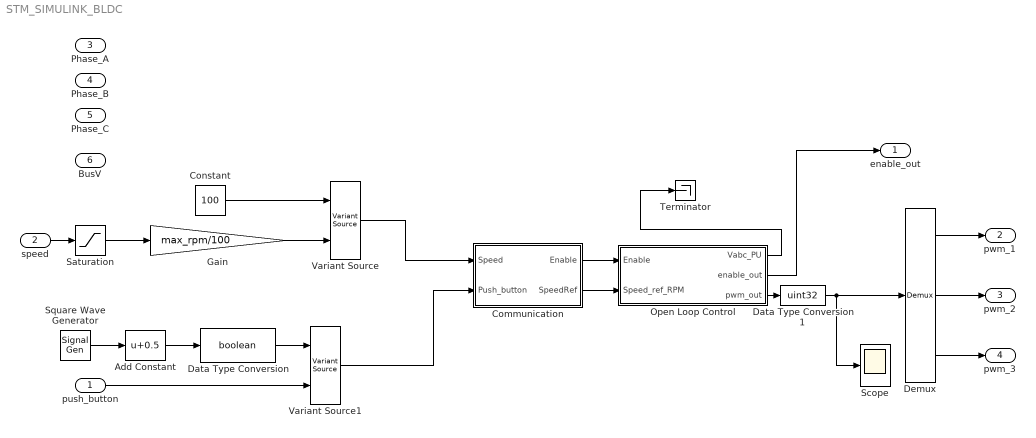
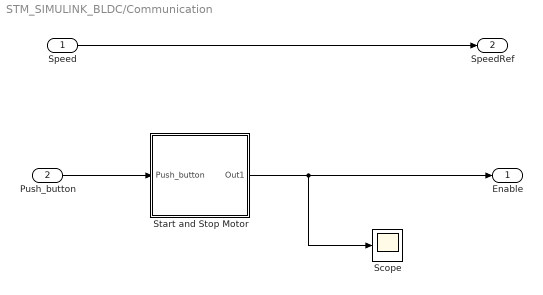
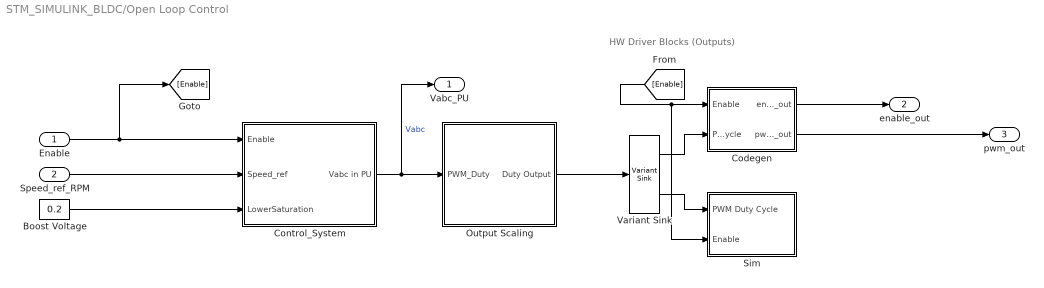
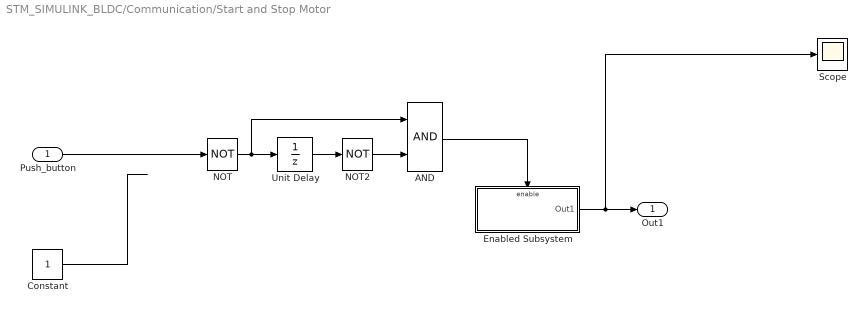
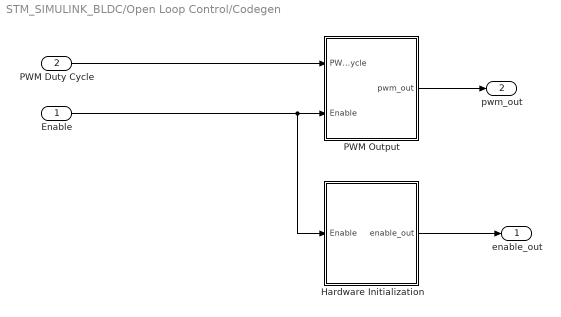
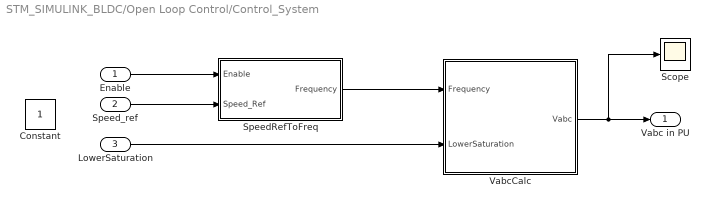
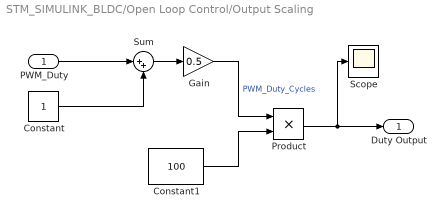
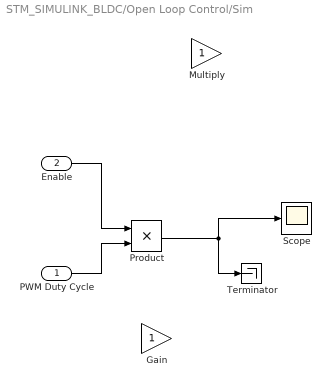
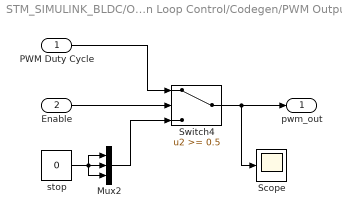
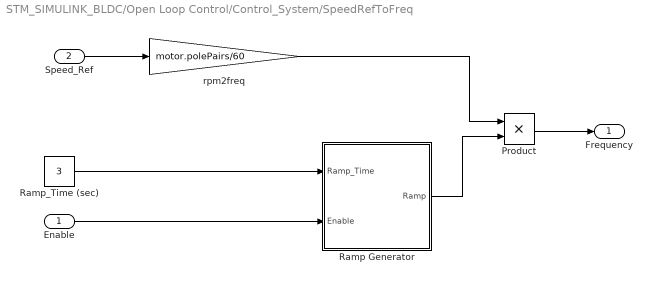
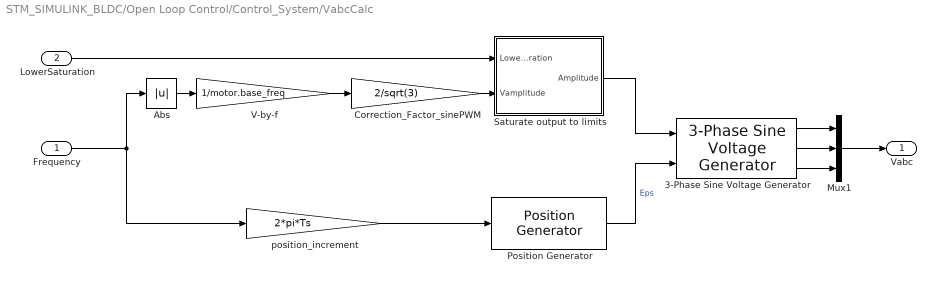
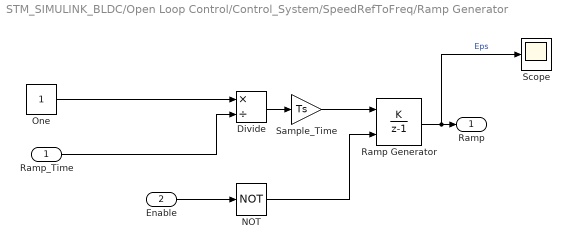
== system STM_SIMULINK_BLDC/Communication/Start and Stop Motor/Enabled Subsystem ==
  Enable : EnablePort
  NOT : Logic  Operator=NOT  IconShape=distinctive  AllPortsSameDT=off  OutDataTypeStr=boolean
  Unit Delay : UnitDelay  InitialCondition=true  SampleTime=-1  HasFrameUpgradeWarning=on
  Out1 : Outport
  wires:
  Unit Delay/1 -> NOT/1, Out1/1
  NOT/1 -> Unit Delay/1

== system STM_SIMULINK_BLDC/Open Loop Control/Codegen/Hardware Initialization ==
  Enable : Inport
  Constant1 : Constant  Value=0.5  OutDataTypeStr=uint16
  NOT : Logic  Operator=NOT  IconShape=distinctive  AllPortsSameDT=off  OutDataTypeStr=boolean
  Switch : Switch  Criteria=u2 > Threshold  OutDataTypeStr=boolean  RndMeth=Simplest  SaturateOnIntegerOverflow=off  InputSameDT=off
  enable_out : Outport
  wires:
  Enable/1 -> NOT/1, Switch/1
  Constant1/1 -> Switch/2
  NOT/1 -> Switch/3
  Switch/1 -> enable_out/1

== system STM_SIMULINK_BLDC/Open Loop Control/Control_System/VabcCalc/Saturate output to limits ==
  Lower Saturation : Inport
  Vamplitude : Inport  Port=2
  Relational Operator : RelationalOperator  Operator=>  OutDataTypeStr=boolean  RndMeth=Simplest  InputSameDT=off
  Saturation : Saturate  UpperLimit=0.95  LowerLimit=0  RndMeth=Simplest
  Switch : Switch  Criteria=u2 > Threshold  SaturateOnIntegerOverflow=off  InputSameDT=off
  Amplitude : Outport
  wires:
  Saturation/1 -> Amplitude/1
  Switch/1 -> Saturation/1
  Relational Operator/1 -> Switch/2
  Lower Saturation/1 -> Switch/3, Relational Operator/2
  Vamplitude/1 -> Switch/1, Relational Operator/1

/*
 * Academic License - for use in teaching, academic research, and meeting
 * course requirements at degree granting institutions only.  Not for
 * government, commercial, or other organizational use.
 *
 * File: STM_SIMULINK_BLDC.c
 *
 * Code generated for Simulink model 'STM_SIMULINK_BLDC'.
 *
 * Model version                  : 1.1
 * Simulink Coder version         : 9.7 (R2022a) 13-Nov-2021
 * C/C++ source code generated on : Thu Dec 14 16:52:02 2023
 *
 * Target selection: ert.tlc
 * Embedded hardware selection: ARM Compatible->ARM Cortex
 * Code generation objectives: Unspecified
 * Validation result: Not run
 */

#include "STM_SIMULINK_BLDC.h"
#include <math.h>
#include "rt_nonfinite.h"
#include "rtwtypes.h"
#include "STM_SIMULINK_BLDC_private.h"

/* Block signals (default storage) */
B_STM_SIMULINK_BLDC_T STM_SIMULINK_BLDC_B;

/* Block states (default storage) */
DW_STM_SIMULINK_BLDC_T STM_SIMULINK_BLDC_DW;

/* External inputs (root inport signals with default storage) */
ExtU_STM_SIMULINK_BLDC_T STM_SIMULINK_BLDC_U;

/* External outputs (root outports fed by signals with default storage) */
ExtY_STM_SIMULINK_BLDC_T STM_SIMULINK_BLDC_Y;

/* Real-time model */
static RT_MODEL_STM_SIMULINK_BLDC_T STM_SIMULINK_BLDC_M_;
RT_MODEL_STM_SIMULINK_BLDC_T *const STM_SIMULINK_BLDC_M = &STM_SIMULINK_BLDC_M_;

/* Model step function */
void STM_SIMULINK_BLDC_step(void)
{
  real32_T rtb_Product_k;
  real32_T rtb_Sum4;
  real32_T rtb_Switch_idx_0;
  real32_T rtb_sum_beta;
  uint16_T rtb_Get_Integer;
  boolean_T rtb_NOT_g2;

  /* Outputs for Atomic SubSystem: '<S1>/Start and Stop Motor' */
  /* Logic: '<S3>/NOT' incorporates:
   *  Inport: '<Root>/push_button'
   */
  rtb_NOT_g2 = !STM_SIMULINK_BLDC_U.push_button;

  /* Outputs for Enabled SubSystem: '<S3>/Enabled Subsystem' incorporates:
   *  EnablePort: '<S4>/Enable'
   */
  /* Logic: '<S3>/AND' incorporates:
   *  Logic: '<S3>/NOT2'
   *  UnitDelay: '<S3>/Unit Delay'
   */
  if (rtb_NOT_g2 && (!STM_SIMULINK_BLDC_DW.UnitDelay_DSTATE_e)) {
    /* UnitDelay: '<S4>/Unit Delay' */
    STM_SIMULINK_BLDC_B.UnitDelay = STM_SIMULINK_BLDC_DW.UnitDelay_DSTATE_n;

    /* Logic: '<S4>/NOT' incorporates:
     *  UnitDelay: '<S4>/Unit Delay'
     */
    STM_SIMULINK_BLDC_DW.UnitDelay_DSTATE_n = !STM_SIMULINK_BLDC_B.UnitDelay;
  }

  /* End of Logic: '<S3>/AND' */
  /* End of Outputs for SubSystem: '<S3>/Enabled Subsystem' */

  /* Update for UnitDelay: '<S3>/Unit Delay' */
  STM_SIMULINK_BLDC_DW.UnitDelay_DSTATE_e = rtb_NOT_g2;

  /* End of Outputs for SubSystem: '<S1>/Start and Stop Motor' */

  /* Logic: '<S13>/NOT' incorporates:
   *  Logic: '<S9>/NOT'
   *  Switch: '<S9>/Switch'
   */
  rtb_NOT_g2 = !STM_SIMULINK_BLDC_B.UnitDelay;

  /* DiscreteIntegrator: '<S13>/Ramp Generator' incorporates:
   *  Logic: '<S13>/NOT'
   */
  if ((rtb_NOT_g2 && (STM_SIMULINK_BLDC_DW.RampGenerator_PrevResetState <= 0)) ||
      ((!rtb_NOT_g2) && (STM_SIMULINK_BLDC_DW.RampGenerator_PrevResetState == 1)))
  {
    STM_SIMULINK_BLDC_DW.RampGenerator_DSTATE =
      STM_SIMULINK_BLDC_P.RampGenerator_IC;
  }

  if (STM_SIMULINK_BLDC_DW.RampGenerator_DSTATE >=
      STM_SIMULINK_BLDC_P.RampGenerator_UpperSat) {
    STM_SIMULINK_BLDC_DW.RampGenerator_DSTATE =
      STM_SIMULINK_BLDC_P.RampGenerator_UpperSat;
  } else if (STM_SIMULINK_BLDC_DW.RampGenerator_DSTATE <=
             STM_SIMULINK_BLDC_P.RampGenerator_LowerSat) {
    STM_SIMULINK_BLDC_DW.RampGenerator_DSTATE =
      STM_SIMULINK_BLDC_P.RampGenerator_LowerSat;
  }

  /* Saturate: '<Root>/Saturation' incorporates:
   *  Inport: '<Root>/speed'
   */
  if (STM_SIMULINK_BLDC_U.speed > STM_SIMULINK_BLDC_P.Saturation_UpperSat_h) {
    rtb_Get_Integer = STM_SIMULINK_BLDC_P.Saturation_UpperSat_h;
  } else if (STM_SIMULINK_BLDC_U.speed <
             STM_SIMULINK_BLDC_P.Saturation_LowerSat_e) {
    rtb_Get_Integer = STM_SIMULINK_BLDC_P.Saturation_LowerSat_e;
  } else {
    rtb_Get_Integer = STM_SIMULINK_BLDC_U.speed;
  }

  /* End of Saturate: '<Root>/Saturation' */

  /* Product: '<S11>/Product' incorporates:
   *  DiscreteIntegrator: '<S13>/Ramp Generator'
   *  Gain: '<Root>/Gain'
   *  Gain: '<S11>/rpm2freq'
   */
  rtb_Product_k = (real32_T)((uint32_T)STM_SIMULINK_BLDC_P.Gain_Gain_d *
    rtb_Get_Integer) * 0.000244140625F * ((real32_T)
    STM_SIMULINK_BLDC_P.rpm2freq_Gain * 2.91038305E-11F) *
    STM_SIMULINK_BLDC_DW.RampGenerator_DSTATE;

  /* Outputs for Enabled SubSystem: '<S15>/Accumulate' incorporates:
   *  EnablePort: '<S26>/Enable'
   */
  STM_SIMULINK_BLDC_DW.Accumulate_MODE = true;

  /* Outputs for Enabled SubSystem: '<S26>/Subsystem' incorporates:
   *  EnablePort: '<S27>/Enable'
   */
  /* Delay: '<S26>/Delay' */
  if (STM_SIMULINK_BLDC_DW.Delay_DSTATE) {
    /* SignalConversion generated from: '<S27>/Input' incorporates:
     *  Gain: '<S12>/position_increment'
     *  Gain: '<S15>/scaleIn'
     */
    STM_SIMULINK_BLDC_B.Input = STM_SIMULINK_BLDC_P.position_increment_Gain *
      rtb_Product_k * STM_SIMULINK_BLDC_P.scaleIn_Gain;
  }

  /* End of Delay: '<S26>/Delay' */
  /* End of Outputs for SubSystem: '<S26>/Subsystem' */

  /* Sum: '<S26>/Add' incorporates:
   *  UnitDelay: '<S15>/Unit Delay'
   */
  rtb_sum_beta = STM_SIMULINK_BLDC_B.Input + STM_SIMULINK_BLDC_B.Add1;

  /* DataTypeConversion: '<S26>/Data Type Conversion' */
  rtb_Switch_idx_0 = (real32_T)floor(rtb_sum_beta);
  if (rtIsNaNF(rtb_Switch_idx_0) || rtIsInfF(rtb_Switch_idx_0)) {
    rtb_Switch_idx_0 = 0.0F;
  } else {
    rtb_Switch_idx_0 = (real32_T)fmod(rtb_Switch_idx_0, 65536.0);
  }

  /* Sum: '<S26>/Add1' incorporates:
   *  DataTypeConversion: '<S26>/Data Type Conversion'
   *  DataTypeConversion: '<S26>/Data Type Conversion1'
   */
  STM_SIMULINK_BLDC_B.Add1 = rtb_sum_beta - (real32_T)(rtb_Switch_idx_0 < 0.0F ?
    (int32_T)(int16_T)-(int16_T)(uint16_T)-rtb_Switch_idx_0 : (int32_T)(int16_T)
    (uint16_T)rtb_Switch_idx_0);

  /* Update for Delay: '<S26>/Delay' incorporates:
   *  Constant: '<S26>/Constant'
   */
  STM_SIMULINK_BLDC_DW.Delay_DSTATE = STM_SIMULINK_BLDC_P.Constant_Value_lk;

  /* End of Outputs for SubSystem: '<S15>/Accumulate' */

  /* Gain: '<S22>/convert_pu' incorporates:
   *  Gain: '<S15>/scaleOut'
   */
  rtb_sum_beta = STM_SIMULINK_BLDC_P.scaleOut_Gain * STM_SIMULINK_BLDC_B.Add1 *
    STM_SIMULINK_BLDC_P.convert_pu_Gain;

  /* If: '<S22>/If' incorporates:
   *  Constant: '<S23>/Constant'
   *  DataTypeConversion: '<S25>/Convert_uint16'
   *  RelationalOperator: '<S23>/Compare'
   */
  if (rtb_sum_beta < STM_SIMULINK_BLDC_P.Constant_Value_l) {
    /* Outputs for IfAction SubSystem: '<S22>/If Action Subsystem' incorporates:
     *  ActionPort: '<S24>/Action Port'
     */
    /* DataTypeConversion: '<S24>/Convert_uint16' */
    rtb_Switch_idx_0 = (real32_T)floor(rtb_sum_beta);
    if (rtIsInfF(rtb_Switch_idx_0)) {
      rtb_Switch_idx_0 = 0.0F;
    } else {
      rtb_Switch_idx_0 = (real32_T)fmod(rtb_Switch_idx_0, 65536.0);
    }

    /* Sum: '<S24>/Sum' incorporates:
     *  DataTypeConversion: '<S24>/Convert_back'
     *  DataTypeConversion: '<S24>/Convert_uint16'
     */
    rtb_sum_beta -= (real32_T)(rtb_Switch_idx_0 < 0.0F ? (int32_T)(int16_T)
      -(int16_T)(uint16_T)-rtb_Switch_idx_0 : (int32_T)(int16_T)(uint16_T)
      rtb_Switch_idx_0);

    /* End of Outputs for SubSystem: '<S22>/If Action Subsystem' */
  } else {
    /* Outputs for IfAction SubSystem: '<S22>/If Action Subsystem1' incorporates:
     *  ActionPort: '<S25>/Action Port'
     */
    if (rtb_sum_beta < 0.0F) {
      /* DataTypeConversion: '<S25>/Convert_uint16' */
      rtb_Switch_idx_0 = (real32_T)ceil(rtb_sum_beta);
    } else {
      /* DataTypeConversion: '<S25>/Convert_uint16' */
      rtb_Switch_idx_0 = (real32_T)floor(rtb_sum_beta);
    }

    /* DataTypeConversion: '<S25>/Convert_uint16' */
    if (rtIsNaNF(rtb_Switch_idx_0) || rtIsInfF(rtb_Switch_idx_0)) {
      rtb_Switch_idx_0 = 0.0F;
    } else {
      rtb_Switch_idx_0 = (real32_T)fmod(rtb_Switch_idx_0, 65536.0);
    }

    /* Sum: '<S25>/Sum' incorporates:
     *  DataTypeConversion: '<S25>/Convert_back'
     *  DataTypeConversion: '<S25>/Convert_uint16'
     */
    rtb_sum_beta -= (real32_T)(rtb_Switch_idx_0 < 0.0F ? (int32_T)(int16_T)
      -(int16_T)(uint16_T)-rtb_Switch_idx_0 : (int32_T)(int16_T)(uint16_T)
      rtb_Switch_idx_0);

    /* End of Outputs for SubSystem: '<S22>/If Action Subsystem1' */
  }

  /* End of If: '<S22>/If' */

  /* Gain: '<S19>/indexing' */
  rtb_sum_beta *= STM_SIMULINK_BLDC_P.indexing_Gain;

  /* DataTypeConversion: '<S19>/Get_Integer' */
  if (rtb_sum_beta < 0.0F) {
    rtb_Switch_idx_0 = (real32_T)ceil(rtb_sum_beta);
  } else {
    rtb_Switch_idx_0 = (real32_T)floor(rtb_sum_beta);
  }

  if (rtIsNaNF(rtb_Switch_idx_0) || rtIsInfF(rtb_Switch_idx_0)) {
    rtb_Switch_idx_0 = 0.0F;
  } else {
    rtb_Switch_idx_0 = (real32_T)fmod(rtb_Switch_idx_0, 65536.0);
  }

  rtb_Get_Integer = (uint16_T)(rtb_Switch_idx_0 < 0.0F ? (int32_T)(uint16_T)
    -(int16_T)(uint16_T)-rtb_Switch_idx_0 : (int32_T)(uint16_T)rtb_Switch_idx_0);

  /* End of DataTypeConversion: '<S19>/Get_Integer' */

  /* Gain: '<S12>/Correction_Factor_sinePWM' incorporates:
   *  Abs: '<S12>/Abs'
   *  Gain: '<S12>/V-by-f'
   */
  rtb_Product_k = STM_SIMULINK_BLDC_P.Vbyf_Gain * (real32_T)fabs(rtb_Product_k) *
    STM_SIMULINK_BLDC_P.Correction_Factor_sinePWM_Gain;

  /* Switch: '<S16>/Switch' incorporates:
   *  Constant: '<S2>/Boost Voltage'
   *  RelationalOperator: '<S16>/Relational Operator'
   */
  if (!(rtb_Product_k > STM_SIMULINK_BLDC_P.BoostVoltage_Value)) {
    rtb_Product_k = STM_SIMULINK_BLDC_P.BoostVoltage_Value;
  }

  /* End of Switch: '<S16>/Switch' */

  /* Saturate: '<S16>/Saturation' */
  if (rtb_Product_k > STM_SIMULINK_BLDC_P.Saturation_UpperSat) {
    rtb_Product_k = STM_SIMULINK_BLDC_P.Saturation_UpperSat;
  } else if (rtb_Product_k < STM_SIMULINK_BLDC_P.Saturation_LowerSat) {
    rtb_Product_k = STM_SIMULINK_BLDC_P.Saturation_LowerSat;
  }

  /* End of Saturate: '<S16>/Saturation' */

  /* Sum: '<S19>/Sum2' incorporates:
   *  DataTypeConversion: '<S19>/Data Type Conversion1'
   */
  rtb_sum_beta -= (real32_T)rtb_Get_Integer;

  /* Selector: '<S19>/Lookup' incorporates:
   *  Constant: '<S19>/offset'
   *  Constant: '<S19>/sine_table_values'
   *  Sum: '<S19>/Sum'
   *  Sum: '<S21>/Sum3'
   */
  rtb_Switch_idx_0 = STM_SIMULINK_BLDC_P.sine_table_values_Value[(int32_T)
    ((uint32_T)STM_SIMULINK_BLDC_P.offset_Value[1] + rtb_Get_Integer)];

  /* Sum: '<S21>/Sum4' incorporates:
   *  Constant: '<S19>/offset'
   *  Constant: '<S19>/sine_table_values'
   *  Product: '<S21>/Product'
   *  Selector: '<S19>/Lookup'
   *  Sum: '<S19>/Sum'
   *  Sum: '<S21>/Sum3'
   */
  rtb_Sum4 = (STM_SIMULINK_BLDC_P.sine_table_values_Value[(int32_T)((uint32_T)
    STM_SIMULINK_BLDC_P.offset_Value[0] + rtb_Get_Integer)] - rtb_Switch_idx_0) *
    rtb_sum_beta + rtb_Switch_idx_0;

  /* Selector: '<S19>/Lookup' incorporates:
   *  Constant: '<S19>/offset'
   *  Constant: '<S19>/sine_table_values'
   *  Sum: '<S19>/Sum'
   *  Sum: '<S21>/Sum5'
   */
  rtb_Switch_idx_0 = STM_SIMULINK_BLDC_P.sine_table_values_Value[(int32_T)
    ((uint32_T)STM_SIMULINK_BLDC_P.offset_Value[3] + rtb_Get_Integer)];

  /* Sum: '<S21>/Sum6' incorporates:
   *  Constant: '<S19>/offset'
   *  Constant: '<S19>/sine_table_values'
   *  Product: '<S21>/Product1'
   *  Selector: '<S19>/Lookup'
   *  Sum: '<S19>/Sum'
   *  Sum: '<S21>/Sum5'
   */
  rtb_sum_beta = (STM_SIMULINK_BLDC_P.sine_table_values_Value[(int32_T)
                  ((uint32_T)STM_SIMULINK_BLDC_P.offset_Value[2] +
                   rtb_Get_Integer)] - rtb_Switch_idx_0) * rtb_sum_beta +
    rtb_Switch_idx_0;

  /* Outputs for Atomic SubSystem: '<S14>/Inverse Park Transform' */
  /* Switch: '<S20>/Switch' incorporates:
   *  Constant: '<S14>/Constant'
   *  Constant: '<S20>/Offset'
   *  Product: '<S18>/dcos'
   *  Product: '<S18>/dsin'
   *  Product: '<S18>/qcos'
   *  Product: '<S18>/qsin'
   *  Sum: '<S18>/sum_alpha'
   *  Sum: '<S18>/sum_beta'
   *  UnaryMinus: '<S14>/Unary Minus'
   *  UnaryMinus: '<S20>/Unary_Minus'
   */
  if (STM_SIMULINK_BLDC_P.Offset_Value > STM_SIMULINK_BLDC_P.Switch_Threshold) {
    rtb_Switch_idx_0 = -rtb_Product_k * rtb_sum_beta +
      STM_SIMULINK_BLDC_P.Constant_Value_i * rtb_Sum4;
    rtb_Product_k = -(STM_SIMULINK_BLDC_P.Constant_Value_i * rtb_sum_beta -
                      -rtb_Product_k * rtb_Sum4);
  } else {
    rtb_Switch_idx_0 = STM_SIMULINK_BLDC_P.Constant_Value_i * rtb_sum_beta -
      -rtb_Product_k * rtb_Sum4;
    rtb_Product_k = -rtb_Product_k * rtb_sum_beta +
      STM_SIMULINK_BLDC_P.Constant_Value_i * rtb_Sum4;
  }

  /* End of Switch: '<S20>/Switch' */
  /* End of Outputs for SubSystem: '<S14>/Inverse Park Transform' */

  /* Switch: '<S10>/Switch4' incorporates:
   *  AlgorithmDescriptorDelegate generated from: '<S18>/a16'
   *  Constant: '<S10>/stop'
   *  Constant: '<S7>/Constant'
   *  Constant: '<S7>/Constant1'
   *  Gain: '<S7>/Gain'
   *  Product: '<S7>/Product'
   *  Sum: '<S17>/add_b'
   *  Sum: '<S17>/add_c'
   *  Sum: '<S7>/Sum'
   */
  if (STM_SIMULINK_BLDC_B.UnitDelay) {
    /* Outputs for Atomic SubSystem: '<S14>/Inverse Park Transform' */
    /* Gain: '<S17>/sqrt3_by_two' incorporates:
     *  AlgorithmDescriptorDelegate generated from: '<S18>/a16'
     */
    rtb_sum_beta = STM_SIMULINK_BLDC_P.sqrt3_by_two_Gain * rtb_Product_k;

    /* Gain: '<S17>/one_by_two' incorporates:
     *  AlgorithmDescriptorDelegate generated from: '<S18>/a16'
     */
    rtb_Sum4 = STM_SIMULINK_BLDC_P.one_by_two_Gain * rtb_Switch_idx_0;
    rtb_Switch_idx_0 = (rtb_Switch_idx_0 + STM_SIMULINK_BLDC_P.Constant_Value) *
      STM_SIMULINK_BLDC_P.Gain_Gain * STM_SIMULINK_BLDC_P.Constant1_Value;

    /* End of Outputs for SubSystem: '<S14>/Inverse Park Transform' */
    rtb_Product_k = ((rtb_sum_beta - rtb_Sum4) +
                     STM_SIMULINK_BLDC_P.Constant_Value) *
      STM_SIMULINK_BLDC_P.Gain_Gain * STM_SIMULINK_BLDC_P.Constant1_Value;
    rtb_sum_beta = (((0.0F - rtb_Sum4) - rtb_sum_beta) +
                    STM_SIMULINK_BLDC_P.Constant_Value) *
      STM_SIMULINK_BLDC_P.Gain_Gain * STM_SIMULINK_BLDC_P.Constant1_Value;
  } else {
    rtb_Switch_idx_0 = STM_SIMULINK_BLDC_P.stop_Value;
    rtb_Product_k = STM_SIMULINK_BLDC_P.stop_Value;
    rtb_sum_beta = STM_SIMULINK_BLDC_P.stop_Value;
  }

  /* End of Switch: '<S10>/Switch4' */

  /* DataTypeConversion: '<Root>/Data Type Conversion1' */
  rtb_Switch_idx_0 = (real32_T)floor(rtb_Switch_idx_0);
  if (rtIsNaNF(rtb_Switch_idx_0) || rtIsInfF(rtb_Switch_idx_0)) {
    rtb_Switch_idx_0 = 0.0F;
  } else {
    rtb_Switch_idx_0 = (real32_T)fmod(rtb_Switch_idx_0, 4.294967296E+9);
  }

  rtb_Product_k = (real32_T)floor(rtb_Product_k);
  if (rtIsNaNF(rtb_Product_k) || rtIsInfF(rtb_Product_k)) {
    rtb_Product_k = 0.0F;
  } else {
    rtb_Product_k = (real32_T)fmod(rtb_Product_k, 4.294967296E+9);
  }

  rtb_sum_beta = (real32_T)floor(rtb_sum_beta);
  if (rtIsNaNF(rtb_sum_beta) || rtIsInfF(rtb_sum_beta)) {
    rtb_sum_beta = 0.0F;
  } else {
    rtb_sum_beta = (real32_T)fmod(rtb_sum_beta, 4.294967296E+9);
  }

  /* Outport: '<Root>/pwm_1' incorporates:
   *  DataTypeConversion: '<Root>/Data Type Conversion1'
   */
  STM_SIMULINK_BLDC_Y.pwm_1 = rtb_Switch_idx_0 < 0.0F ? (uint32_T)-(int32_T)
    (uint32_T)-rtb_Switch_idx_0 : (uint32_T)rtb_Switch_idx_0;

  /* Outport: '<Root>/pwm_2' incorporates:
   *  DataTypeConversion: '<Root>/Data Type Conversion1'
   */
  STM_SIMULINK_BLDC_Y.pwm_2 = rtb_Product_k < 0.0F ? (uint32_T)-(int32_T)
    (uint32_T)-rtb_Product_k : (uint32_T)rtb_Product_k;

  /* Outport: '<Root>/pwm_3' incorporates:
   *  DataTypeConversion: '<Root>/Data Type Conversion1'
   */
  STM_SIMULINK_BLDC_Y.pwm_3 = rtb_sum_beta < 0.0F ? (uint32_T)-(int32_T)
    (uint32_T)-rtb_sum_beta : (uint32_T)rtb_sum_beta;

  /* Switch: '<S9>/Switch' incorporates:
   *  Constant: '<S9>/Constant1'
   */
  if (STM_SIMULINK_BLDC_P.Constant1_Value_b >
      STM_SIMULINK_BLDC_P.Switch_Threshold_n) {
    /* Outport: '<Root>/enable_out' */
    STM_SIMULINK_BLDC_Y.enable_out = STM_SIMULINK_BLDC_B.UnitDelay;
  } else {
    /* Outport: '<Root>/enable_out' */
    STM_SIMULINK_BLDC_Y.enable_out = rtb_NOT_g2;
  }

  /* Update for DiscreteIntegrator: '<S13>/Ramp Generator' incorporates:
   *  Constant: '<S11>/Ramp_Time (sec)'
   *  Constant: '<S13>/One'
   *  Gain: '<S13>/Sample_Time'
   *  Logic: '<S13>/NOT'
   *  Product: '<S13>/Divide'
   */
  STM_SIMULINK_BLDC_DW.RampGenerator_DSTATE += STM_SIMULINK_BLDC_P.One_Value /
    STM_SIMULINK_BLDC_P.Ramp_Timesec_Value * STM_SIMULINK_BLDC_P.Ts *
    STM_SIMULINK_BLDC_P.RampGenerator_gainval;
  if (STM_SIMULINK_BLDC_DW.RampGenerator_DSTATE >=
      STM_SIMULINK_BLDC_P.RampGenerator_UpperSat) {
    STM_SIMULINK_BLDC_DW.RampGenerator_DSTATE =
      STM_SIMULINK_BLDC_P.RampGenerator_UpperSat;
  } else if (STM_SIMULINK_BLDC_DW.RampGenerator_DSTATE <=
             STM_SIMULINK_BLDC_P.RampGenerator_LowerSat) {
    STM_SIMULINK_BLDC_DW.RampGenerator_DSTATE =
      STM_SIMULINK_BLDC_P.RampGenerator_LowerSat;
  }

  STM_SIMULINK_BLDC_DW.RampGenerator_PrevResetState = (int8_T)rtb_NOT_g2;

  /* End of Update for DiscreteIntegrator: '<S13>/Ramp Generator' */
}
